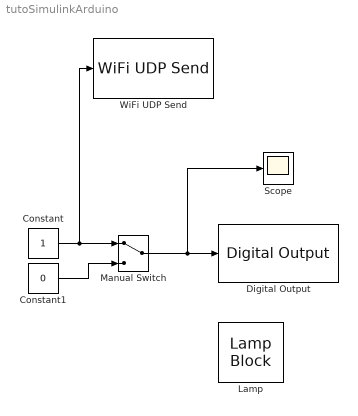
/*
 * Academic License - for use in teaching, academic research, and meeting
 * course requirements at degree granting institutions only.  Not for
 * government, commercial, or other organizational use.
 *
 * File: tutoSimulinkArduino.c
 *
 * Code generated for Simulink model 'tutoSimulinkArduino'.
 *
 * Model version                  : 1.2
 * Simulink Coder version         : 9.5 (R2021a) 14-Nov-2020
 * C/C++ source code generated on : Thu May 30 17:06:59 2024
 *
 * Target selection: ert.tlc
 * Embedded hardware selection: ARM Compatible->ARM Cortex
 * Code generation objectives: Unspecified
 * Validation result: Not run
 */

#include "tutoSimulinkArduino.h"
#include "tutoSimulinkArduino_private.h"
#include "tutoSimulinkArduino_dt.h"

/* Block signals (default storage) */
B_tutoSimulinkArduino_T tutoSimulinkArduino_B;

/* Block states (default storage) */
DW_tutoSimulinkArduino_T tutoSimulinkArduino_DW;

/* Real-time model */
static RT_MODEL_tutoSimulinkArduino_T tutoSimulinkArduino_M_;
RT_MODEL_tutoSimulinkArduino_T *const tutoSimulinkArduino_M =
  &tutoSimulinkArduino_M_;
real_T rt_roundd_snf(real_T u)
{
  real_T y;
  if (fabs(u) < 4.503599627370496E+15) {
    if (u >= 0.5) {
      y = floor(u + 0.5);
    } else if (u > -0.5) {
      y = u * 0.0;
    } else {
      y = ceil(u - 0.5);
    }
  } else {
    y = u;
  }

  return y;
}

/* Model step function */
void tutoSimulinkArduino_step(void)
{
  real_T tmp;
  uint8_T tmp_0;

  /* ManualSwitch: '<Root>/Manual Switch' */
  if (tutoSimulinkArduino_P.ManualSwitch_CurrentSetting == 1) {
    /* ManualSwitch: '<Root>/Manual Switch' incorporates:
     *  Constant: '<Root>/Constant'
     */
    tutoSimulinkArduino_B.ManualSwitch = tutoSimulinkArduino_P.Constant_Value;
  } else {
    /* ManualSwitch: '<Root>/Manual Switch' incorporates:
     *  Constant: '<Root>/Constant1'
     */
    tutoSimulinkArduino_B.ManualSwitch = tutoSimulinkArduino_P.Constant1_Value;
  }

  /* End of ManualSwitch: '<Root>/Manual Switch' */

  /* MATLABSystem: '<Root>/Digital Output' */
  tmp = rt_roundd_snf(tutoSimulinkArduino_B.ManualSwitch);
  if (tmp < 256.0) {
    if (tmp >= 0.0) {
      tmp_0 = (uint8_T)tmp;
    } else {
      tmp_0 = 0U;
    }
  } else {
    tmp_0 = MAX_uint8_T;
  }

  writeDigitalPin(13, tmp_0);

  /* End of MATLABSystem: '<Root>/Digital Output' */

  /* External mode */
  rtExtModeUploadCheckTrigger(1);

  {                                    /* Sample time: [0.001s, 0.0s] */
    rtExtModeUpload(0, (real_T)tutoSimulinkArduino_M->Timing.taskTime0);
  }

  /* signal main to stop simulation */
  {                                    /* Sample time: [0.001s, 0.0s] */
    if ((rtmGetTFinal(tutoSimulinkArduino_M)!=-1) &&
        !((rtmGetTFinal(tutoSimulinkArduino_M)-
           tutoSimulinkArduino_M->Timing.taskTime0) >
          tutoSimulinkArduino_M->Timing.taskTime0 * (DBL_EPSILON))) {
      rtmSetErrorStatus(tutoSimulinkArduino_M, "Simulation finished");
    }

    if (rtmGetStopRequested(tutoSimulinkArduino_M)) {
      rtmSetErrorStatus(tutoSimulinkArduino_M, "Simulation finished");
    }
  }

  /* Update absolute time for base rate */
  /* The "clockTick0" counts the number of times the code of this task has
   * been executed. The absolute time is the multiplication of "clockTick0"
   * and "Timing.stepSize0". Size of "clockTick0" ensures timer will not
   * overflow during the application lifespan selected.
   */
  tutoSimulinkArduino_M->Timing.taskTime0 =
    ((time_T)(++tutoSimulinkArduino_M->Timing.clockTick0)) *
    tutoSimulinkArduino_M->Timing.stepSize0;
}
